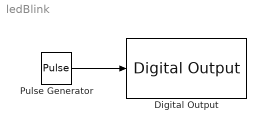
/*
 * Academic License - for use in teaching, academic research, and meeting
 * course requirements at degree granting institutions only.  Not for
 * government, commercial, or other organizational use.
 *
 * File: ledBlink.c
 *
 * Code generated for Simulink model 'ledBlink'.
 *
 * Model version                  : 1.1
 * Simulink Coder version         : 8.10 (R2016a) 10-Feb-2016
 * C/C++ source code generated on : Wed Dec 21 14:25:04 2016
 *
 * Target selection: ert.tlc
 * Embedded hardware selection: Atmel->AVR
 * Code generation objectives: Unspecified
 * Validation result: Not run
 */

#include "ledBlink.h"
#include "ledBlink_private.h"

/* Block states (auto storage) */
DW_ledBlink_T ledBlink_DW;

/* Real-time model */
RT_MODEL_ledBlink_T ledBlink_M_;
RT_MODEL_ledBlink_T *const ledBlink_M = &ledBlink_M_;

/* Model step function */
void ledBlink_step(void)
{
  real_T rtb_PulseGenerator;
  uint8_T rtb_PulseGenerator_0;

  /* DiscretePulseGenerator: '<Root>/Pulse Generator' */
  rtb_PulseGenerator = (ledBlink_DW.clockTickCounter <
                        ledBlink_P.PulseGenerator_Duty) &&
    (ledBlink_DW.clockTickCounter >= 0L) ? ledBlink_P.PulseGenerator_Amp : 0.0;
  if (ledBlink_DW.clockTickCounter >= ledBlink_P.PulseGenerator_Period - 1.0) {
    ledBlink_DW.clockTickCounter = 0L;
  } else {
    ledBlink_DW.clockTickCounter++;
  }

  /* End of DiscretePulseGenerator: '<Root>/Pulse Generator' */

  /* DataTypeConversion: '<S1>/Data Type Conversion' */
  if (rtb_PulseGenerator < 256.0) {
    if (rtb_PulseGenerator >= 0.0) {
      rtb_PulseGenerator_0 = (uint8_T)rtb_PulseGenerator;
    } else {
      rtb_PulseGenerator_0 = 0U;
    }
  } else {
    rtb_PulseGenerator_0 = MAX_uint8_T;
  }

  /* End of DataTypeConversion: '<S1>/Data Type Conversion' */

  /* S-Function (arduinodigitaloutput_sfcn): '<S1>/Digital Output' */
  MW_digitalWrite(ledBlink_P.DigitalOutput_pinNumber, rtb_PulseGenerator_0);
}
